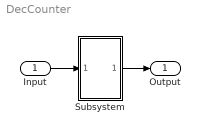
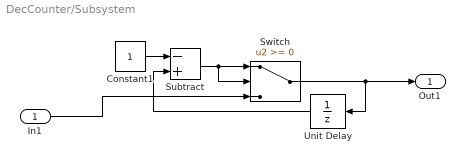
/*
 * File: DecCounter.c
 *
 * Code generated for Simulink model 'DecCounter'.
 *
 * Model version                  : 1.3
 * Simulink Coder version         : 9.5 (R2021a) 14-Nov-2020
 * C/C++ source code generated on : Tue Jan 30 15:06:31 2024
 *
 * Target selection: ert.tlc
 * Embedded hardware selection: Intel->x86-64 (Windows64)
 * Code generation objectives: Unspecified
 * Validation result: Not run
 */

#include "DecCounter.h"
#include "DecCounter_private.h"

/* Block states (default storage) */
DW_DecCounter_T DecCounter_DW;

/* External inputs (root inport signals with default storage) */
ExtU_DecCounter_T DecCounter_U;

/* External outputs (root outports fed by signals with default storage) */
ExtY_DecCounter_T DecCounter_Y;

/* Real-time model */
static RT_MODEL_DecCounter_T DecCounter_M_;
RT_MODEL_DecCounter_T *const DecCounter_M = &DecCounter_M_;

/* Model step function */
void DecCounter_step(void)
{
  real_T rtb_Subtract;

  /* Sum: '<S1>/Subtract' incorporates:
   *  Constant: '<S1>/Constant1'
   *  UnitDelay: '<S1>/Unit Delay'
   */
  rtb_Subtract = DecCounter_DW.UnitDelay_DSTATE - 1.0;

  /* Switch: '<S1>/Switch' incorporates:
   *  Inport: '<Root>/Input'
   */
  if (!(rtb_Subtract >= 0.0)) {
    rtb_Subtract = DecCounter_U.Input;
  }

  /* End of Switch: '<S1>/Switch' */

  /* Outport: '<Root>/Output' */
  DecCounter_Y.Output = rtb_Subtract;

  /* Update for UnitDelay: '<S1>/Unit Delay' */
  DecCounter_DW.UnitDelay_DSTATE = rtb_Subtract;
}
